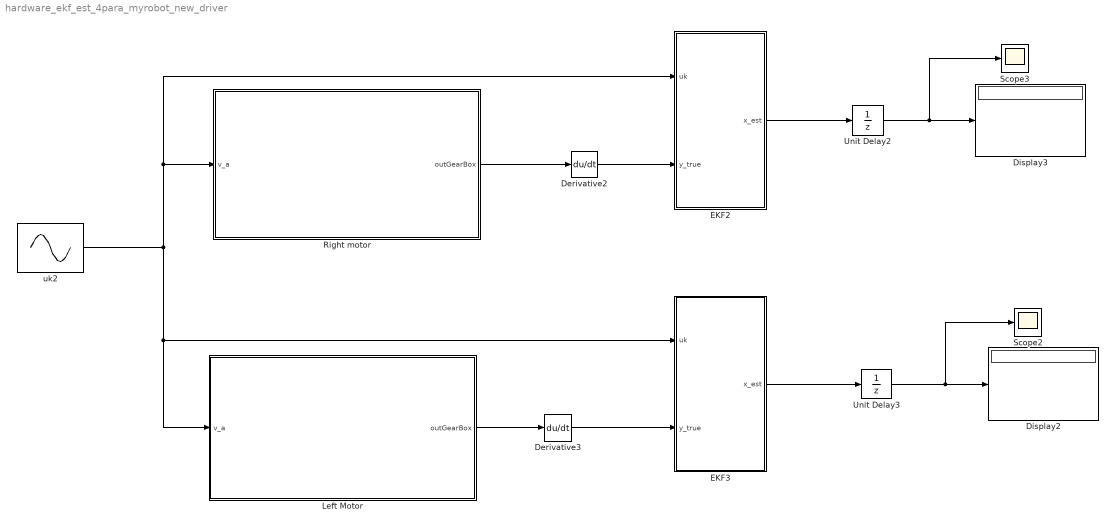
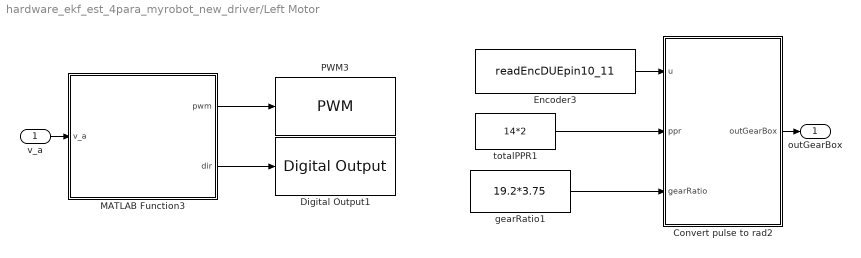
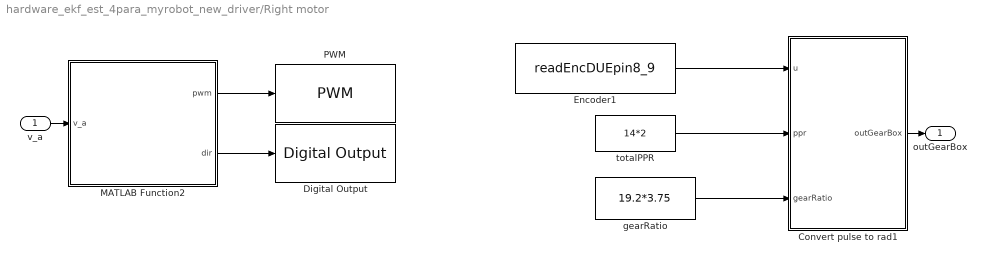
== matlab function hardware_ekf_est_4para_myrobot_new_driver/Left Motor/Convert pulse to rad2 ==
function outGearBox = fcn(u,ppr,gearRatio)

persistent counter_num over_flag
if(isempty(counter_num)), counter_num = 0;end
if(isempty(over_flag)), over_flag = 0;end
pulse2radian = 2*pi/ppr; % 1 pulse = ?? radian

if(double(u) - counter_num > 40000), over_flag = over_flag-1;
elseif(double(u) - counter_num < -40000), over_flag = over_flag+1;
end

inGearBox = (double(u)+over_flag*(2^32 -1))*pulse2radian; 
outGearBox = inGearBox/gearRatio;
counter_num = double(u) ;

== matlab function hardware_ekf_est_4para_myrobot_new_driver/Right motor/MATLAB Function2 ==
function [pwm,dir] = fcn(v_a)

vmax = 22.9;
pwm_cal = v_a*254/vmax;
if pwm_cal > 0
    pwm = pwm_cal;
    dir = 0;
elseif pwm_cal < 0
    pwm = abs(pwm_cal);
    dir = 1;
else
    pwm = 0;
    dir = 0;
end

== matlab function hardware_ekf_est_4para_myrobot_new_driver/Left Motor/MATLAB Function3 ==
function [pwm,dir] = fcn(v_a)

vmax = 22.9;
pwm_cal = v_a*254/vmax;
if pwm_cal > 0
    pwm = pwm_cal;
    dir = 1;
elseif pwm_cal < 0
    pwm = abs(pwm_cal);
    dir = 0;
else
    pwm = 0;
    dir = 0;
end

== matlab function hardware_ekf_est_4para_myrobot_new_driver/EKF2 ==
function x_est = fcn(uk,y_true)
Ts=0.01;
persistent x_est_p P Qd_est R_est Qc_est;
if isempty(x_est_p)
          
          x_est_p=[2;13;25;1];
          P=2*eye(4);
         Qc_est=1e-5*diag([10,25,25,1]);
          Qd_est=Qc_est*Ts;
          R_est=0.02;
end
c=[1 0 0 0];D=0;Ck=c;Dk=D;
%Comput Kalman Gain and update predicted value
Wk=P*Ck'/(Ck*P*Ck'+R_est);
y_est=Ck*x_est_p+Dk*uk;
x=x_est_p+Wk.*(y_true-y_est);
%Compute prediction at next time step
x_est=x+Ts*[-x(2)*x(1)+uk*x(3)-x(4)*sign(x(1));0;0;0];
%Update error covariance matrices
P=P-Wk*Ck*P;
%Define Ak
Ak=eye(4)+Ts*[-x(2) -x(1) uk -sign(x(1));0 0 0 0;0 0 0 0;0 0 0 0];
P=Ak*P*Ak'+Qd_est;
x_est_p=x_est;

== matlab function hardware_ekf_est_4para_myrobot_new_driver/EKF3 ==
function x_est = fcn(uk,y_true)
Ts=0.01;
persistent x_est_p P Qd_est R_est Qc_est;
if isempty(x_est_p)
          
          x_est_p=[2;13;25;1];
          P=2*eye(4);
         Qc_est=1e-5*diag([10,25,25,1]);
          Qd_est=Qc_est*Ts;
          R_est=0.02;
end
c=[1 0 0 0];D=0;Ck=c;Dk=D;
%Comput Kalman Gain and update predicted value
Wk=P*Ck'/(Ck*P*Ck'+R_est);
y_est=Ck*x_est_p+Dk*uk;
x=x_est_p+Wk.*(y_true-y_est);
%Compute prediction at next time step
x_est=x+Ts*[-x(2)*x(1)+uk*x(3)-x(4)*sign(x(1));0;0;0];
%Update error covariance matrices
P=P-Wk*Ck*P;
%Define Ak
Ak=eye(4)+Ts*[-x(2) -x(1) uk -sign(x(1));0 0 0 0;0 0 0 0;0 0 0 0];
P=Ak*P*Ak'+Qd_est;
x_est_p=x_est;

== matlab function hardware_ekf_est_4para_myrobot_new_driver/Right motor/Convert pulse to rad1 ==
function outGearBox = fcn(u,ppr,gearRatio)

persistent counter_num over_flag
if(isempty(counter_num)), counter_num = 0;end
if(isempty(over_flag)), over_flag = 0;end
pulse2radian = 2*pi/ppr; % 1 pulse = ?? radian

if(double(u) - counter_num > 40000), over_flag = over_flag-1;
elseif(double(u) - counter_num < -40000), over_flag = over_flag+1;
end

inGearBox = (double(u)+over_flag*(2^32 -1))*pulse2radian; 
outGearBox = inGearBox/gearRatio;
counter_num = double(u) ;

/*
 * File: hardware_ekf_est_4para_myrobot_new_driver.c
 *
 * Code generated for Simulink model 'hardware_ekf_est_4para_myrobot_new_driver'.
 *
 * Model version                  : 3.17
 * Simulink Coder version         : 9.4 (R2020b) 29-Jul-2020
 * C/C++ source code generated on : Tue Jun 28 16:28:18 2022
 *
 * Target selection: ert.tlc
 * Embedded hardware selection: ARM Compatible->ARM Cortex
 * Code generation objectives: Unspecified
 * Validation result: Not run
 */

#include "hardware_ekf_est_4para_myrobot_new_driver.h"
#include "hardware_ekf_est_4para_myrobot_new_driver_private.h"

/* Block signals (default storage) */
B_hardware_ekf_est_4para_myro_T hardware_ekf_est_4para_myrobo_B;

/* Block states (default storage) */
DW_hardware_ekf_est_4para_myr_T hardware_ekf_est_4para_myrob_DW;

/* Real-time model */
static RT_MODEL_hardware_ekf_est_4pa_T hardware_ekf_est_4para_myrob_M_;
RT_MODEL_hardware_ekf_est_4pa_T *const hardware_ekf_est_4para_myrob_M =
  &hardware_ekf_est_4para_myrob_M_;

/*
 * System initialize for atomic system:
 *    '<Root>/EKF2'
 *    '<Root>/EKF3'
 */
void hardware_ekf_est_4par_EKF2_Init(DW_EKF2_hardware_ekf_est_4par_T *localDW)
{
  static const real_T b[16] = { 0.0001, 0.0, 0.0, 0.0, 0.0, 0.00025, 0.0, 0.0,
    0.0, 0.0, 0.00025, 0.0, 0.0, 0.0, 0.0, 1.0E-5 };

  static const int8_T tmp[16] = { 2, 0, 0, 0, 0, 2, 0, 0, 0, 0, 2, 0, 0, 0, 0, 2
  };

  int32_T i;
  localDW->x_est_p[0] = 2.0;
  localDW->x_est_p[1] = 13.0;
  localDW->x_est_p[2] = 25.0;
  localDW->x_est_p[3] = 1.0;
  for (i = 0; i < 16; i++) {
    localDW->P[i] = tmp[i];
    localDW->Qd_est[i] = b[i] * 0.01;
  }

  localDW->R_est = 0.02;
}

/*
 * Output and update for atomic system:
 *    '<Root>/EKF2'
 *    '<Root>/EKF3'
 */
void hardware_ekf_est_4para_myr_EKF2(real_T rtu_uk, real_T rtu_y_true, real_T
  rty_x_est[4], B_EKF2_hardware_ekf_est_4para_T *localB,
  DW_EKF2_hardware_ekf_est_4par_T *localDW)
{
  real_T y_tmp_1;
  real_T y_tmp_2;
  int32_T Ak_tmp;
  int32_T Ak_tmp_tmp;
  int32_T i;
  int32_T y_tmp_tmp;
  int8_T b_I[16];
  int8_T y_tmp[4];
  int8_T y_tmp_0[4];
  int8_T y_tmp_3;
  y_tmp[0] = 1;
  y_tmp_0[0] = 1;
  y_tmp[1] = 0;
  y_tmp_0[1] = 0;
  y_tmp[2] = 0;
  y_tmp_0[2] = 0;
  y_tmp[3] = 0;
  y_tmp_0[3] = 0;
  y_tmp_1 = 0.0;
  for (i = 0; i < 4; i++) {
    y_tmp_tmp = i << 2;
    y_tmp_2 = localDW->P[y_tmp_tmp + 3] * 0.0 + (localDW->P[y_tmp_tmp + 2] * 0.0
      + (localDW->P[y_tmp_tmp + 1] * 0.0 + localDW->P[y_tmp_tmp]));
    y_tmp_1 += y_tmp_2 * (real_T)y_tmp[i];
  }

  y_tmp_2 = y_tmp_1 + localDW->R_est;
  y_tmp_1 = 0.0;
  for (i = 0; i < 4; i++) {
    localB->Wk[i] = (((localDW->P[i + 4] * 0.0 + localDW->P[i]) + localDW->P[i +
                      8] * 0.0) + localDW->P[i + 12] * 0.0) / y_tmp_2;
    y_tmp_1 += (real_T)y_tmp_0[i] * localDW->x_est_p[i];
  }

  y_tmp_1 = rtu_y_true - (0.0 * rtu_uk + y_tmp_1);
  for (i = 0; i < 4; i++) {
    y_tmp_3 = y_tmp_0[i];
    localDW->x_est_p[i] += localB->Wk[i] * y_tmp_1;
    y_tmp_tmp = i << 2;
    localB->Ak[y_tmp_tmp] = localB->Wk[0] * (real_T)y_tmp_3;
    localB->Ak[y_tmp_tmp + 1] = localB->Wk[1] * (real_T)y_tmp_3;
    localB->Ak[y_tmp_tmp + 2] = localB->Wk[2] * (real_T)y_tmp_3;
    localB->Ak[y_tmp_tmp + 3] = localB->Wk[3] * (real_T)y_tmp_3;
  }

  if (localDW->x_est_p[0] < 0.0) {
    y_tmp_1 = -1.0;
  } else if (localDW->x_est_p[0] > 0.0) {
    y_tmp_1 = 1.0;
  } else if (localDW->x_est_p[0] == 0.0) {
    y_tmp_1 = 0.0;
  } else {
    y_tmp_1 = (rtNaN);
  }

  rty_x_est[0] = ((-localDW->x_est_p[1] * localDW->x_est_p[0] + rtu_uk *
                   localDW->x_est_p[2]) - localDW->x_est_p[3] * y_tmp_1) * 0.01
    + localDW->x_est_p[0];
  rty_x_est[1] = localDW->x_est_p[1];
  rty_x_est[2] = localDW->x_est_p[2];
  rty_x_est[3] = localDW->x_est_p[3];
  for (i = 0; i < 4; i++) {
    for (y_tmp_tmp = 0; y_tmp_tmp < 4; y_tmp_tmp++) {
      Ak_tmp_tmp = i << 2;
      Ak_tmp = Ak_tmp_tmp + y_tmp_tmp;
      localB->Ak_m[Ak_tmp] = localDW->P[Ak_tmp] - (((localDW->P[Ak_tmp_tmp + 1] *
        localB->Ak[y_tmp_tmp + 4] + localDW->P[Ak_tmp_tmp] * localB->
        Ak[y_tmp_tmp]) + localDW->P[Ak_tmp_tmp + 2] * localB->Ak[y_tmp_tmp + 8])
        + localDW->P[Ak_tmp_tmp + 3] * localB->Ak[y_tmp_tmp + 12]);
    }
  }

  for (i = 0; i < 16; i++) {
    localDW->P[i] = localB->Ak_m[i];
    b_I[i] = 0;
  }

  localB->Ak[0] = 0.01 * -localDW->x_est_p[1] + 1.0;
  localB->Ak[1] = b_I[1];
  localB->Ak[2] = b_I[2];
  localB->Ak[3] = b_I[3];
  localB->Ak[4] = 0.01 * -localDW->x_est_p[0] + (real_T)b_I[4];
  localB->Ak[5] = 1.0;
  localB->Ak[6] = b_I[6];
  localB->Ak[7] = b_I[7];
  localB->Ak[8] = 0.01 * rtu_uk + (real_T)b_I[8];
  localB->Ak[9] = b_I[9];
  localB->Ak[10] = 1.0;
  localB->Ak[11] = b_I[11];
  if (localDW->x_est_p[0] < 0.0) {
    y_tmp_1 = -1.0;
  } else if (localDW->x_est_p[0] > 0.0) {
    y_tmp_1 = 1.0;
  } else if (localDW->x_est_p[0] == 0.0) {
    y_tmp_1 = 0.0;
  } else {
    y_tmp_1 = (rtNaN);
  }

  localB->Ak[12] = 0.01 * -y_tmp_1 + (real_T)b_I[12];
  localB->Ak[13] = b_I[13];
  localB->Ak[14] = b_I[14];
  localB->Ak[15] = 1.0;
  for (i = 0; i < 4; i++) {
    for (y_tmp_tmp = 0; y_tmp_tmp < 4; y_tmp_tmp++) {
      Ak_tmp_tmp = i << 2;
      Ak_tmp = y_tmp_tmp + Ak_tmp_tmp;
      localB->Ak_m[Ak_tmp] = 0.0;
      localB->Ak_m[Ak_tmp] += localDW->P[Ak_tmp_tmp] * localB->Ak[y_tmp_tmp];
      localB->Ak_m[Ak_tmp] += localDW->P[Ak_tmp_tmp + 1] * localB->Ak[y_tmp_tmp
        + 4];
      localB->Ak_m[Ak_tmp] += localDW->P[Ak_tmp_tmp + 2] * localB->Ak[y_tmp_tmp
        + 8];
      localB->Ak_m[Ak_tmp] += localDW->P[Ak_tmp_tmp + 3] * localB->Ak[y_tmp_tmp
        + 12];
    }
  }

  for (y_tmp_tmp = 0; y_tmp_tmp < 4; y_tmp_tmp++) {
    for (i = 0; i < 4; i++) {
      Ak_tmp_tmp = (i << 2) + y_tmp_tmp;
      localDW->P[Ak_tmp_tmp] = (((localB->Ak_m[y_tmp_tmp + 4] * localB->Ak[i + 4]
        + localB->Ak_m[y_tmp_tmp] * localB->Ak[i]) + localB->Ak_m[y_tmp_tmp + 8]
        * localB->Ak[i + 8]) + localB->Ak_m[y_tmp_tmp + 12] * localB->Ak[i + 12])
        + localDW->Qd_est[Ak_tmp_tmp];
    }

    localDW->x_est_p[y_tmp_tmp] = rty_x_est[y_tmp_tmp];
  }
}

/*
 * Output and update for atomic system:
 *    '<S3>/Convert pulse to rad2'
 *    '<S4>/Convert pulse to rad1'
 */
void hardware_ekf_Convertpulsetorad2(int32_T rtu_u, real_T rtu_ppr, real_T
  rtu_gearRatio, real_T *rty_outGearBox, DW_Convertpulsetorad2_hardwar_T
  *localDW)
{
  real_T tmp;
  tmp = (real_T)rtu_u - localDW->counter_num;
  if (tmp > 40000.0) {
    localDW->over_flag--;
  } else {
    if (tmp < -40000.0) {
      localDW->over_flag++;
    }
  }

  *rty_outGearBox = (localDW->over_flag * 4.294967295E+9 + (real_T)rtu_u) *
    (6.2831853071795862 / rtu_ppr) / rtu_gearRatio;
  localDW->counter_num = rtu_u;
}

/* Model step function */
void hardware_ekf_est_4para_myrobot_new_driver_step(void)
{
  {
    codertarget_arduinobase_inter_T *obj;
    real_T *lastU;

    /* UnitDelay: '<Root>/Unit Delay3' */
    hardware_ekf_est_4para_myrobo_B.UnitDelay3[0] =
      hardware_ekf_est_4para_myrob_DW.UnitDelay3_DSTATE[0];
    hardware_ekf_est_4para_myrobo_B.UnitDelay3[1] =
      hardware_ekf_est_4para_myrob_DW.UnitDelay3_DSTATE[1];
    hardware_ekf_est_4para_myrobo_B.UnitDelay3[2] =
      hardware_ekf_est_4para_myrob_DW.UnitDelay3_DSTATE[2];
    hardware_ekf_est_4para_myrobo_B.UnitDelay3[3] =
      hardware_ekf_est_4para_myrob_DW.UnitDelay3_DSTATE[3];

    /* UnitDelay: '<Root>/Unit Delay2' */
    hardware_ekf_est_4para_myrobo_B.UnitDelay2[0] =
      hardware_ekf_est_4para_myrob_DW.UnitDelay2_DSTATE[0];
    hardware_ekf_est_4para_myrobo_B.UnitDelay2[1] =
      hardware_ekf_est_4para_myrob_DW.UnitDelay2_DSTATE[1];
    hardware_ekf_est_4para_myrobo_B.UnitDelay2[2] =
      hardware_ekf_est_4para_myrob_DW.UnitDelay2_DSTATE[2];
    hardware_ekf_est_4para_myrobo_B.UnitDelay2[3] =
      hardware_ekf_est_4para_myrob_DW.UnitDelay2_DSTATE[3];

    /* S-Function (readEncDUEpin8_9): '<S4>/Encoder1' */
    readEncDUEpin8_9_Outputs_wrapper(&hardware_ekf_est_4para_myrobo_B.Encoder1,
      &hardware_ekf_est_4para_myrob_DW.Encoder1_DSTATE);

    /* MATLAB Function: '<S4>/Convert pulse to rad1' incorporates:
     *  Constant: '<S4>/gearRatio'
     *  Constant: '<S4>/totalPPR'
     */
    hardware_ekf_Convertpulsetorad2(hardware_ekf_est_4para_myrobo_B.Encoder1,
      hardware_ekf_est_4para_myrobo_P.totalPPR_Value,
      hardware_ekf_est_4para_myrobo_P.gearRatio_Value,
      &hardware_ekf_est_4para_myrobo_B.outGearBox,
      &hardware_ekf_est_4para_myrob_DW.sf_Convertpulsetorad1);

    /* Derivative: '<Root>/Derivative2' incorporates:
     *  Derivative: '<Root>/Derivative3'
     */
    hardware_ekf_est_4para_myrobo_B.Derivative3 =
      hardware_ekf_est_4para_myrob_M->Timing.t[0];
    if ((hardware_ekf_est_4para_myrob_DW.TimeStampA >=
         hardware_ekf_est_4para_myrobo_B.Derivative3) &&
        (hardware_ekf_est_4para_myrob_DW.TimeStampB >=
         hardware_ekf_est_4para_myrobo_B.Derivative3)) {
      /* Derivative: '<Root>/Derivative2' */
      hardware_ekf_est_4para_myrobo_B.Derivative2 = 0.0;
    } else {
      hardware_ekf_est_4para_myrobo_B.Derivative2 =
        hardware_ekf_est_4para_myrob_DW.TimeStampA;
      lastU = &hardware_ekf_est_4para_myrob_DW.LastUAtTimeA;
      if (hardware_ekf_est_4para_myrob_DW.TimeStampA <
          hardware_ekf_est_4para_myrob_DW.TimeStampB) {
        if (hardware_ekf_est_4para_myrob_DW.TimeStampB <
            hardware_ekf_est_4para_myrobo_B.Derivative3) {
          hardware_ekf_est_4para_myrobo_B.Derivative2 =
            hardware_ekf_est_4para_myrob_DW.TimeStampB;
          lastU = &hardware_ekf_est_4para_myrob_DW.LastUAtTimeB;
        }
      } else {
        if (hardware_ekf_est_4para_myrob_DW.TimeStampA >=
            hardware_ekf_est_4para_myrobo_B.Derivative3) {
          hardware_ekf_est_4para_myrobo_B.Derivative2 =
            hardware_ekf_est_4para_myrob_DW.TimeStampB;
          lastU = &hardware_ekf_est_4para_myrob_DW.LastUAtTimeB;
        }
      }

      /* Derivative: '<Root>/Derivative2' */
      hardware_ekf_est_4para_myrobo_B.Derivative2 =
        (hardware_ekf_est_4para_myrobo_B.outGearBox - *lastU) /
        (hardware_ekf_est_4para_myrobo_B.Derivative3 -
         hardware_ekf_est_4para_myrobo_B.Derivative2);
    }

    /* End of Derivative: '<Root>/Derivative2' */

    /* Sin: '<Root>/uk2' */
    hardware_ekf_est_4para_myrobo_B.uk2 = sin
      (hardware_ekf_est_4para_myrobo_P.uk2_Freq *
       hardware_ekf_est_4para_myrob_M->Timing.t[0] +
       hardware_ekf_est_4para_myrobo_P.uk2_Phase) *
      hardware_ekf_est_4para_myrobo_P.uk2_Amp +
      hardware_ekf_est_4para_myrobo_P.uk2_Bias;

    /* MATLAB Function: '<Root>/EKF2' incorporates:
     *  UnitDelay: '<Root>/Unit Delay2'
     */
    hardware_ekf_est_4para_myr_EKF2(hardware_ekf_est_4para_myrobo_B.uk2,
      hardware_ekf_est_4para_myrobo_B.Derivative2,
      hardware_ekf_est_4para_myrob_DW.UnitDelay2_DSTATE,
      &hardware_ekf_est_4para_myrobo_B.sf_EKF2,
      &hardware_ekf_est_4para_myrob_DW.sf_EKF2);

    /* S-Function (readEncDUEpin10_11): '<S3>/Encoder3' */
    readEncDUEpin10_11_Outputs_wrapper(&hardware_ekf_est_4para_myrobo_B.Encoder3,
      &hardware_ekf_est_4para_myrob_DW.Encoder3_DSTATE);

    /* MATLAB Function: '<S3>/Convert pulse to rad2' incorporates:
     *  Constant: '<S3>/gearRatio1'
     *  Constant: '<S3>/totalPPR1'
     */
    hardware_ekf_Convertpulsetorad2(hardware_ekf_est_4para_myrobo_B.Encoder3,
      hardware_ekf_est_4para_myrobo_P.totalPPR1_Value,
      hardware_ekf_est_4para_myrobo_P.gearRatio1_Value,
      &hardware_ekf_est_4para_myrobo_B.outGearBox_h,
      &hardware_ekf_est_4para_myrob_DW.sf_Convertpulsetorad2);

    /* Derivative: '<Root>/Derivative3' */
    if ((hardware_ekf_est_4para_myrob_DW.TimeStampA_g >=
         hardware_ekf_est_4para_myrobo_B.Derivative3) &&
        (hardware_ekf_est_4para_myrob_DW.TimeStampB_p >=
         hardware_ekf_est_4para_myrobo_B.Derivative3)) {
      /* Derivative: '<Root>/Derivative3' */
      hardware_ekf_est_4para_myrobo_B.Derivative3 = 0.0;
    } else {
      hardware_ekf_est_4para_myrobo_B.Derivative2 =
        hardware_ekf_est_4para_myrob_DW.TimeStampA_g;
      lastU = &hardware_ekf_est_4para_myrob_DW.LastUAtTimeA_i;
      if (hardware_ekf_est_4para_myrob_DW.TimeStampA_g <
          hardware_ekf_est_4para_myrob_DW.TimeStampB_p) {
        if (hardware_ekf_est_4para_myrob_DW.TimeStampB_p <
            hardware_ekf_est_4para_myrobo_B.Derivative3) {
          hardware_ekf_est_4para_myrobo_B.Derivative2 =
            hardware_ekf_est_4para_myrob_DW.TimeStampB_p;
          lastU = &hardware_ekf_est_4para_myrob_DW.LastUAtTimeB_d;
        }
      } else {
        if (hardware_ekf_est_4para_myrob_DW.TimeStampA_g >=
            hardware_ekf_est_4para_myrobo_B.Derivative3) {
          hardware_ekf_est_4para_myrobo_B.Derivative2 =
            hardware_ekf_est_4para_myrob_DW.TimeStampB_p;
          lastU = &hardware_ekf_est_4para_myrob_DW.LastUAtTimeB_d;
        }
      }

      /* Derivative: '<Root>/Derivative3' */
      hardware_ekf_est_4para_myrobo_B.Derivative3 =
        (hardware_ekf_est_4para_myrobo_B.outGearBox_h - *lastU) /
        (hardware_ekf_est_4para_myrobo_B.Derivative3 -
         hardware_ekf_est_4para_myrobo_B.Derivative2);
    }

    /* MATLAB Function: '<Root>/EKF3' incorporates:
     *  UnitDelay: '<Root>/Unit Delay3'
     */
    hardware_ekf_est_4para_myr_EKF2(hardware_ekf_est_4para_myrobo_B.uk2,
      hardware_ekf_est_4para_myrobo_B.Derivative3,
      hardware_ekf_est_4para_myrob_DW.UnitDelay3_DSTATE,
      &hardware_ekf_est_4para_myrobo_B.sf_EKF3,
      &hardware_ekf_est_4para_myrob_DW.sf_EKF3);

    /* MATLAB Function: '<S3>/MATLAB Function3' incorporates:
     *  MATLAB Function: '<S4>/MATLAB Function2'
     */
    hardware_ekf_est_4para_myrobo_B.Derivative3 =
      hardware_ekf_est_4para_myrobo_B.uk2 * 254.0 / 22.9;
    if (hardware_ekf_est_4para_myrobo_B.Derivative3 > 0.0) {
      hardware_ekf_est_4para_myrobo_B.uk2 =
        hardware_ekf_est_4para_myrobo_B.Derivative3;
      hardware_ekf_est_4para_myrobo_B.dir_b = 1;
    } else if (hardware_ekf_est_4para_myrobo_B.Derivative3 < 0.0) {
      hardware_ekf_est_4para_myrobo_B.uk2 = fabs
        (hardware_ekf_est_4para_myrobo_B.Derivative3);
      hardware_ekf_est_4para_myrobo_B.dir_b = 0;
    } else {
      hardware_ekf_est_4para_myrobo_B.uk2 = 0.0;
      hardware_ekf_est_4para_myrobo_B.dir_b = 0;
    }

    /* End of MATLAB Function: '<S3>/MATLAB Function3' */

    /* MATLABSystem: '<S3>/Digital Output1' */
    writeDigitalPin(4, (uint8_T)hardware_ekf_est_4para_myrobo_B.dir_b);

    /* MATLABSystem: '<S3>/PWM3' */
    obj = &hardware_ekf_est_4para_myrob_DW.obj_h;
    obj->MW_PWM_HANDLE = MW_PWM_GetHandle
      (hardware_ekf_est_4para_myrob_DW.obj_h.PinPWM);
    if (!(hardware_ekf_est_4para_myrobo_B.uk2 < 255.0)) {
      hardware_ekf_est_4para_myrobo_B.uk2 = 255.0;
    }

    MW_PWM_SetDutyCycle(hardware_ekf_est_4para_myrob_DW.obj_h.MW_PWM_HANDLE,
                        hardware_ekf_est_4para_myrobo_B.uk2);

    /* End of MATLABSystem: '<S3>/PWM3' */

    /* MATLAB Function: '<S4>/MATLAB Function2' */
    if (hardware_ekf_est_4para_myrobo_B.Derivative3 > 0.0) {
      hardware_ekf_est_4para_myrobo_B.dir_b = 0;
    } else if (hardware_ekf_est_4para_myrobo_B.Derivative3 < 0.0) {
      hardware_ekf_est_4para_myrobo_B.Derivative3 = fabs
        (hardware_ekf_est_4para_myrobo_B.Derivative3);
      hardware_ekf_est_4para_myrobo_B.dir_b = 1;
    } else {
      hardware_ekf_est_4para_myrobo_B.Derivative3 = 0.0;
      hardware_ekf_est_4para_myrobo_B.dir_b = 0;
    }

    /* MATLABSystem: '<S4>/Digital Output' */
    writeDigitalPin(7, (uint8_T)hardware_ekf_est_4para_myrobo_B.dir_b);

    /* MATLABSystem: '<S4>/PWM' */
    obj = &hardware_ekf_est_4para_myrob_DW.obj_d;
    obj->MW_PWM_HANDLE = MW_PWM_GetHandle
      (hardware_ekf_est_4para_myrob_DW.obj_d.PinPWM);
    if (!(hardware_ekf_est_4para_myrobo_B.Derivative3 < 255.0)) {
      hardware_ekf_est_4para_myrobo_B.Derivative3 = 255.0;
    }

    MW_PWM_SetDutyCycle(hardware_ekf_est_4para_myrob_DW.obj_d.MW_PWM_HANDLE,
                        hardware_ekf_est_4para_myrobo_B.Derivative3);

    /* End of MATLABSystem: '<S4>/PWM' */
  }

  {
    real_T *lastU;

    /* Update for S-Function (readEncDUEpin8_9): '<S4>/Encoder1' */

    /* S-Function "readEncDUEpin8_9_wrapper" Block: <S4>/Encoder1 */
    readEncDUEpin8_9_Update_wrapper(&hardware_ekf_est_4para_myrobo_B.Encoder1,
      &hardware_ekf_est_4para_myrob_DW.Encoder1_DSTATE);

    /* Update for Derivative: '<Root>/Derivative2' */
    if (hardware_ekf_est_4para_myrob_DW.TimeStampA == (rtInf)) {
      hardware_ekf_est_4para_myrob_DW.TimeStampA =
        hardware_ekf_est_4para_myrob_M->Timing.t[0];
      lastU = &hardware_ekf_est_4para_myrob_DW.LastUAtTimeA;
    } else if (hardware_ekf_est_4para_myrob_DW.TimeStampB == (rtInf)) {
      hardware_ekf_est_4para_myrob_DW.TimeStampB =
        hardware_ekf_est_4para_myrob_M->Timing.t[0];
      lastU = &hardware_ekf_est_4para_myrob_DW.LastUAtTimeB;
    } else if (hardware_ekf_est_4para_myrob_DW.TimeStampA <
               hardware_ekf_est_4para_myrob_DW.TimeStampB) {
      hardware_ekf_est_4para_myrob_DW.TimeStampA =
        hardware_ekf_est_4para_myrob_M->Timing.t[0];
      lastU = &hardware_ekf_est_4para_myrob_DW.LastUAtTimeA;
    } else {
      hardware_ekf_est_4para_myrob_DW.TimeStampB =
        hardware_ekf_est_4para_myrob_M->Timing.t[0];
      lastU = &hardware_ekf_est_4para_myrob_DW.LastUAtTimeB;
    }

    *lastU = hardware_ekf_est_4para_myrobo_B.outGearBox;

    /* End of Update for Derivative: '<Root>/Derivative2' */

    /* Update for S-Function (readEncDUEpin10_11): '<S3>/Encoder3' */

    /* S-Function "readEncDUEpin10_11_wrapper" Block: <S3>/Encoder3 */
    readEncDUEpin10_11_Update_wrapper(&hardware_ekf_est_4para_myrobo_B.Encoder3,
      &hardware_ekf_est_4para_myrob_DW.Encoder3_DSTATE);

    /* Update for Derivative: '<Root>/Derivative3' */
    if (hardware_ekf_est_4para_myrob_DW.TimeStampA_g == (rtInf)) {
      hardware_ekf_est_4para_myrob_DW.TimeStampA_g =
        hardware_ekf_est_4para_myrob_M->Timing.t[0];
      lastU = &hardware_ekf_est_4para_myrob_DW.LastUAtTimeA_i;
    } else if (hardware_ekf_est_4para_myrob_DW.TimeStampB_p == (rtInf)) {
      hardware_ekf_est_4para_myrob_DW.TimeStampB_p =
        hardware_ekf_est_4para_myrob_M->Timing.t[0];
      lastU = &hardware_ekf_est_4para_myrob_DW.LastUAtTimeB_d;
    } else if (hardware_ekf_est_4para_myrob_DW.TimeStampA_g <
               hardware_ekf_est_4para_myrob_DW.TimeStampB_p) {
      hardware_ekf_est_4para_myrob_DW.TimeStampA_g =
        hardware_ekf_est_4para_myrob_M->Timing.t[0];
      lastU = &hardware_ekf_est_4para_myrob_DW.LastUAtTimeA_i;
    } else {
      hardware_ekf_est_4para_myrob_DW.TimeStampB_p =
        hardware_ekf_est_4para_myrob_M->Timing.t[0];
      lastU = &hardware_ekf_est_4para_myrob_DW.LastUAtTimeB_d;
    }

    *lastU = hardware_ekf_est_4para_myrobo_B.outGearBox_h;

    /* End of Update for Derivative: '<Root>/Derivative3' */
  }

  /* External mode */
  rtExtModeUploadCheckTrigger(2);

  {                                    /* Sample time: [0.0s, 0.0s] */
    rtExtModeUpload(0, (real_T)hardware_ekf_est_4para_myrob_M->Timing.t[0]);
  }

  {                                    /* Sample time: [0.01s, 0.0s] */
    rtExtModeUpload(1, (real_T)
                    ((hardware_ekf_est_4para_myrob_M->Timing.clockTick1) * 0.01));
  }

  /* signal main to stop simulation */
  {                                    /* Sample time: [0.0s, 0.0s] */
    if ((rtmGetTFinal(hardware_ekf_est_4para_myrob_M)!=-1) &&
        !((rtmGetTFinal(hardware_ekf_est_4para_myrob_M)-
           hardware_ekf_est_4para_myrob_M->Timing.t[0]) >
          hardware_ekf_est_4para_myrob_M->Timing.t[0] * (DBL_EPSILON))) {
      rtmSetErrorStatus(hardware_ekf_est_4para_myrob_M, "Simulation finished");
    }

    if (rtmGetStopRequested(hardware_ekf_est_4para_myrob_M)) {
      rtmSetErrorStatus(hardware_ekf_est_4para_myrob_M, "Simulation finished");
    }
  }

  /* Update absolute time for base rate */
  /* The "clockTick0" counts the number of times the code of this task has
   * been executed. The absolute time is the multiplication of "clockTick0"
   * and "Timing.stepSize0". Size of "clockTick0" ensures timer will not
   * overflow during the application lifespan selected.
   */
  hardware_ekf_est_4para_myrob_M->Timing.t[0] =
    ((time_T)(++hardware_ekf_est_4para_myrob_M->Timing.clockTick0)) *
    hardware_ekf_est_4para_myrob_M->Timing.stepSize0;

  {
    /* Update absolute timer for sample time: [0.01s, 0.0s] */
    /* The "clockTick1" counts the number of times the code of this task has
     * been executed. The resolution of this integer timer is 0.01, which is the step size
     * of the task. Size of "clockTick1" ensures timer will not overflow during the
     * application lifespan selected.
     */
    hardware_ekf_est_4para_myrob_M->Timing.clockTick1++;
  }
}
